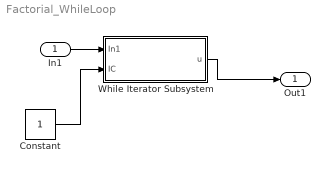
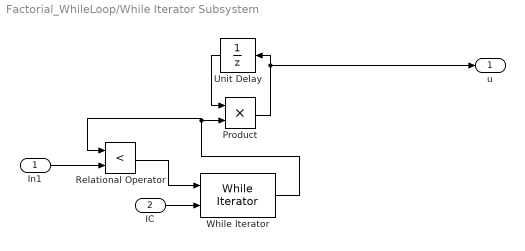
/*
 * File: Factorial_WhileLoop.c
 *
 * Code generated for Simulink model 'Factorial_WhileLoop'.
 *
 * Model version                  : 1.7
 * Simulink Coder version         : 9.5 (R2021a) 14-Nov-2020
 * C/C++ source code generated on : Mon Feb 26 04:34:22 2024
 *
 * Target selection: ert.tlc
 * Embedded hardware selection: Intel->x86-64 (Windows64)
 * Code generation objectives:
 *    1. RAM efficiency
 *    2. Execution efficiency
 * Validation result: Not run
 */

#include "Factorial_WhileLoop.h"
#include "Factorial_WhileLoop_private.h"

/* Model step function */
void Factorial_WhileLoop_step(RT_MODEL_Factorial_WhileLoop_T *const
  Factorial_WhileLoop_M, int32_T Factorial_WhileLoop_U_In1, int32_T
  *Factorial_WhileLoop_Y_Out1)
{
  DW_Factorial_WhileLoop_T *Factorial_WhileLoop_DW =
    Factorial_WhileLoop_M->dwork;
  int32_T s1_iter;
  boolean_T loopCond;

  /* Outputs for Iterator SubSystem: '<Root>/While Iterator Subsystem' incorporates:
   *  WhileIterator: '<S1>/While Iterator'
   */
  s1_iter = 1;

  /* Constant: '<Root>/Constant' */
  loopCond = true;
  while (loopCond && (s1_iter <= 20)) {
    /* Outport: '<Root>/Out1' incorporates:
     *  Product: '<S1>/Product'
     *  UnitDelay: '<S1>/Unit Delay'
     */
    *Factorial_WhileLoop_Y_Out1 = Factorial_WhileLoop_DW->UnitDelay_DSTATE *
      s1_iter;

    /* Update for UnitDelay: '<S1>/Unit Delay' incorporates:
     *  Outport: '<Root>/Out1'
     */
    Factorial_WhileLoop_DW->UnitDelay_DSTATE = *Factorial_WhileLoop_Y_Out1;

    /* RelationalOperator: '<S1>/Relational Operator' incorporates:
     *  Inport: '<Root>/In1'
     */
    loopCond = (s1_iter < Factorial_WhileLoop_U_In1);
    s1_iter++;
  }

  /* End of Outputs for SubSystem: '<Root>/While Iterator Subsystem' */
}
